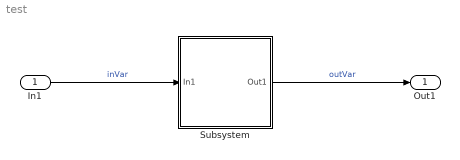
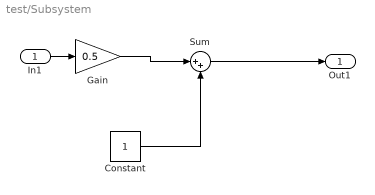
/*
 * File: test.c
 *
 * Code generated for Simulink model 'test'.
 *
 * Model version                  : 1.7
 * Simulink Coder version         : 8.1 (R2011b) 08-Jul-2011
 * TLC version                    : 8.1 (Jul  9 2011)
 * C/C++ source code generated on : Tue Oct 22 22:50:12 2013
 *
 * Target selection: ert.tlc
 * Embedded hardware selection: 32-bit Generic
 * Code generation objectives: Unspecified
 * Validation result: Not run
 */

#include "test.h"
#include "test_private.h"

/* Exported data definition */

/* Definition for custom storage class: ExportToFile */
real_T inVar;
real_T outVar;

/* Real-time model */
RT_MODEL_test test_M_;
RT_MODEL_test *const test_M = &test_M_;

/* Model step function */
void test_step(void)
{
  /* Sum: '<S1>/Sum' incorporates:
   *  Constant: '<S1>/Constant'
   *  Gain: '<S1>/Gain'
   *  Inport: '<Root>/In1'
   */
  outVar = test_P.Gain_Gain * inVar + test_P.Constant_Value;
}
